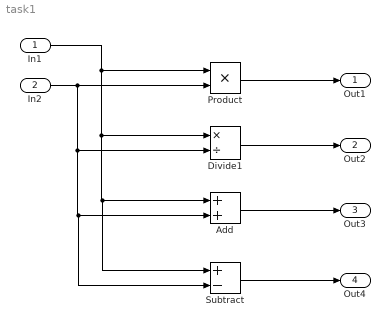
/*
 * File: task1.c
 *
 * Code generated for Simulink model 'task1'.
 *
 * Model version                  : 1.2
 * Simulink Coder version         : 8.10 (R2016a) 10-Feb-2016
 * C/C++ source code generated on : Wed Mar 02 00:22:56 2022
 *
 * Target selection: ert.tlc
 * Embedded hardware selection: Intel->x86-64 (Windows64)
 * Code generation objectives: Unspecified
 * Validation result: Not run
 */

#include "task1.h"
#include "task1_private.h"

/* External inputs (root inport signals with auto storage) */
ExtU_task1_T task1_U;

/* External outputs (root outports fed by signals with auto storage) */
ExtY_task1_T task1_Y;

/* Real-time model */
RT_MODEL_task1_T task1_M_;
RT_MODEL_task1_T *const task1_M = &task1_M_;

/* Model step function */
void task1_step(void)
{
  /* Outport: '<Root>/Out1' incorporates:
   *  Inport: '<Root>/In1'
   *  Inport: '<Root>/In2'
   *  Product: '<Root>/Product'
   */
  task1_Y.Out1 = task1_U.In1 * task1_U.In2;

  /* Outport: '<Root>/Out2' incorporates:
   *  Inport: '<Root>/In1'
   *  Inport: '<Root>/In2'
   *  Product: '<Root>/Divide1'
   */
  task1_Y.Out2 = task1_U.In1 / task1_U.In2;

  /* Outport: '<Root>/Out3' incorporates:
   *  Inport: '<Root>/In1'
   *  Inport: '<Root>/In2'
   *  Sum: '<Root>/Add'
   */
  task1_Y.Out3 = task1_U.In1 + task1_U.In2;

  /* Outport: '<Root>/Out4' incorporates:
   *  Inport: '<Root>/In1'
   *  Inport: '<Root>/In2'
   *  Sum: '<Root>/Subtract'
   */
  task1_Y.Out4 = task1_U.In1 - task1_U.In2;
}
